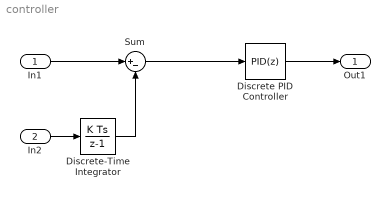
/*
 * File: controller.c
 *
 * Code generated for Simulink model 'controller'.
 *
 * Model version                  : 1.1
 * Simulink Coder version         : 9.9 (R2023a) 19-Nov-2022
 * C/C++ source code generated on : Mon Nov 18 18:11:07 2024
 *
 * Target selection: ert.tlc
 * Embedded hardware selection: ARM Compatible->ARM Cortex-M
 * Code generation objectives:
 *    1. Execution efficiency
 *    2. RAM efficiency
 * Validation result: Not run
 */

#include "controller.h"
#include "rtwtypes.h"

/* Block signals and states (default storage) */
DW rtDW;

/* External inputs (root inport signals with default storage) */
ExtU rtU;

/* External outputs (root outports fed by signals with default storage) */
ExtY rtY;

/* Model step function */
void controller_step(void)
{
  real_T rtb_FilterCoefficient;
  real_T rtb_Sum;

  /* Sum: '<Root>/Sum' incorporates:
   *  DiscreteIntegrator: '<Root>/Discrete-Time Integrator'
   *  Inport: '<Root>/In1'
   */
  rtb_Sum = rtU.In1 - rtDW.DiscreteTimeIntegrator_DSTATE;

  /* Gain: '<S36>/Filter Coefficient' incorporates:
   *  DiscreteIntegrator: '<S28>/Filter'
   *  Gain: '<S27>/Derivative Gain'
   *  Sum: '<S28>/SumD'
   */
  rtb_FilterCoefficient = (0.0 * rtb_Sum - rtDW.Filter_DSTATE) * 100.0;

  /* Outport: '<Root>/Out1' incorporates:
   *  DiscreteIntegrator: '<S33>/Integrator'
   *  Gain: '<S38>/Proportional Gain'
   *  Sum: '<S42>/Sum'
   */
  rtY.Out1 = (100.0 * rtb_Sum + rtDW.Integrator_DSTATE) + rtb_FilterCoefficient;

  /* Update for DiscreteIntegrator: '<Root>/Discrete-Time Integrator' incorporates:
   *  Inport: '<Root>/In2'
   */
  rtDW.DiscreteTimeIntegrator_DSTATE += 0.2 * rtU.In2;

  /* Update for DiscreteIntegrator: '<S33>/Integrator' */
  rtDW.Integrator_DSTATE += 0.2 * rtb_Sum;

  /* Update for DiscreteIntegrator: '<S28>/Filter' */
  rtDW.Filter_DSTATE += 0.2 * rtb_FilterCoefficient;
}
